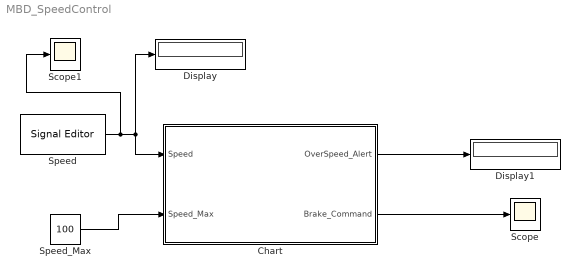
== stateflow chart MBD_SpeedControl/Chart ==
  state Alerte
    OverSpeed_Alert = true;
    Brake_Command = false;
  state Freinage
    OverSpeed_Alert = true;
    Brake_Command = true;
  state Normal
    OverSpeed_Alert = false;
    Brake_Command=false;
  Normal -> Alerte : [Speed > Speed_Max ]
  Alerte -> Freinage [order 1] : [Speed > Speed_Max + 20 ]
  Alerte -> Normal [order 2] : [Speed <= Speed_Max ]
  (default) -> Normal
  Freinage -> Normal : [Speed <= Speed_Max ]
  data: Speed input; Speed_Max input; OverSpeed_Alert output boolean; Brake_Command output boolean

/*
 * File: MBD_SpeedControl.c
 *
 * Code generated for Simulink model 'MBD_SpeedControl'.
 *
 * Model version                  : 1.5
 * Simulink Coder version         : 24.1 (R2024a) 19-Nov-2023
 * C/C++ source code generated on : Fri Nov 14 01:31:17 2025
 *
 * Target selection: ert.tlc
 * Embedded hardware selection: Intel->x86-64 (Windows64)
 * Code generation objectives: Unspecified
 * Validation result: Not run
 */

#include "MBD_SpeedControl.h"
#include "rtwtypes.h"
#include "MBD_SpeedControl_private.h"

/* Named constants for Chart: '<Root>/Chart' */
#define MBD_SpeedControl_IN_Alerte     ((uint8_T)1U)
#define MBD_SpeedControl_IN_Freinage   ((uint8_T)2U)
#define MBD_SpeedControl_IN_Normal     ((uint8_T)3U)

/* Block signals (default storage) */
B_MBD_SpeedControl_T MBD_SpeedControl_B;

/* Block states (default storage) */
DW_MBD_SpeedControl_T MBD_SpeedControl_DW;

/* Real-time model */
static RT_MODEL_MBD_SpeedControl_T MBD_SpeedControl_M_;
RT_MODEL_MBD_SpeedControl_T *const MBD_SpeedControl_M = &MBD_SpeedControl_M_;

/* Model step function */
void MBD_SpeedControl_step(void)
{
  /* FromWorkspace: '<S2>/fromWS_Signal 1' */
  {
    real_T t = MBD_SpeedControl_M->Timing.t[0];
    real_T *pTimeValues = (real_T *)
      MBD_SpeedControl_DW.fromWS_Signal1_PWORK.TimePtr;
    real_T *pDataValues = (real_T *)
      MBD_SpeedControl_DW.fromWS_Signal1_PWORK.DataPtr;
    if (t < pTimeValues[0]) {
      MBD_SpeedControl_B.Signal1 = 0.0;
    } else if (t == pTimeValues[1]) {
      MBD_SpeedControl_B.Signal1 = pDataValues[1];
    } else if (t > pTimeValues[1]) {
      MBD_SpeedControl_B.Signal1 = 0.0;
    } else {
      int_T currTimeIndex = MBD_SpeedControl_DW.fromWS_Signal1_IWORK.PrevIndex;
      if (t < pTimeValues[currTimeIndex]) {
        while (t < pTimeValues[currTimeIndex]) {
          currTimeIndex--;
        }
      } else {
        while (t >= pTimeValues[currTimeIndex + 1]) {
          currTimeIndex++;
        }
      }

      MBD_SpeedControl_B.Signal1 = pDataValues[currTimeIndex];
      MBD_SpeedControl_DW.fromWS_Signal1_IWORK.PrevIndex = currTimeIndex;
    }
  }

  /* Chart: '<Root>/Chart' incorporates:
   *  Constant: '<Root>/Speed_Max'
   */
  if (MBD_SpeedControl_DW.is_active_c3_MBD_SpeedControl == 0U) {
    MBD_SpeedControl_DW.is_active_c3_MBD_SpeedControl = 1U;
    MBD_SpeedControl_DW.is_c3_MBD_SpeedControl = MBD_SpeedControl_IN_Normal;
  } else {
    switch (MBD_SpeedControl_DW.is_c3_MBD_SpeedControl) {
     case MBD_SpeedControl_IN_Alerte:
      if (MBD_SpeedControl_B.Signal1 > 120.0) {
        MBD_SpeedControl_DW.is_c3_MBD_SpeedControl =
          MBD_SpeedControl_IN_Freinage;
      } else if (MBD_SpeedControl_B.Signal1 <= 100.0) {
        MBD_SpeedControl_DW.is_c3_MBD_SpeedControl = MBD_SpeedControl_IN_Normal;
      }
      break;

     case MBD_SpeedControl_IN_Freinage:
      if (MBD_SpeedControl_B.Signal1 <= 100.0) {
        MBD_SpeedControl_DW.is_c3_MBD_SpeedControl = MBD_SpeedControl_IN_Normal;
      }
      break;

     default:
      /* case IN_Normal: */
      if (MBD_SpeedControl_B.Signal1 > 100.0) {
        MBD_SpeedControl_DW.is_c3_MBD_SpeedControl = MBD_SpeedControl_IN_Alerte;
      }
      break;
    }
  }

  /* End of Chart: '<Root>/Chart' */

  /* Update absolute time for base rate */
  /* The "clockTick0" counts the number of times the code of this task has
   * been executed. The absolute time is the multiplication of "clockTick0"
   * and "Timing.stepSize0". Size of "clockTick0" ensures timer will not
   * overflow during the application lifespan selected.
   */
  MBD_SpeedControl_M->Timing.t[0] =
    ((time_T)(++MBD_SpeedControl_M->Timing.clockTick0)) *
    MBD_SpeedControl_M->Timing.stepSize0;

  {
    /* Update absolute timer for sample time: [0.4s, 0.0s] */
    /* The "clockTick1" counts the number of times the code of this task has
     * been executed. The resolution of this integer timer is 0.4, which is the step size
     * of the task. Size of "clockTick1" ensures timer will not overflow during the
     * application lifespan selected.
     */
    MBD_SpeedControl_M->Timing.clockTick1++;
  }
}
